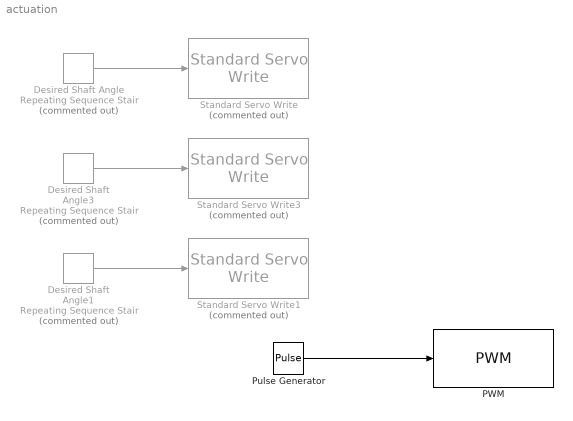
/*
 * Academic License - for use in teaching, academic research, and meeting
 * course requirements at degree granting institutions only.  Not for
 * government, commercial, or other organizational use.
 *
 * File: actuation.c
 *
 * Code generated for Simulink model 'actuation'.
 *
 * Model version                  : 1.5
 * Simulink Coder version         : 9.7 (R2022a) 13-Nov-2021
 * C/C++ source code generated on : Fri Apr  7 23:07:34 2023
 *
 * Target selection: ert.tlc
 * Embedded hardware selection: Atmel->AVR
 * Code generation objectives: Unspecified
 * Validation result: Not run
 */

#include "actuation.h"
#include "rtwtypes.h"
#include "actuation_types.h"

/* Block states (default storage) */
DW_actuation_T actuation_DW;

/* Real-time model */
static RT_MODEL_actuation_T actuation_M_;
RT_MODEL_actuation_T *const actuation_M = &actuation_M_;

/* Model step function */
void actuation_step(void)
{
  codertarget_arduinobase_inter_T *obj;
  real_T rtb_PulseGenerator;

  /* DiscretePulseGenerator: '<Root>/Pulse Generator' */
  rtb_PulseGenerator = (actuation_DW.clockTickCounter <
                        actuation_P.PulseGenerator_Duty) &&
    (actuation_DW.clockTickCounter >= 0L) ? actuation_P.PulseGenerator_Amp : 0.0;
  if (actuation_DW.clockTickCounter >= actuation_P.PulseGenerator_Period - 1.0)
  {
    actuation_DW.clockTickCounter = 0L;
  } else {
    actuation_DW.clockTickCounter++;
  }

  /* End of DiscretePulseGenerator: '<Root>/Pulse Generator' */

  /* MATLABSystem: '<Root>/PWM' */
  obj = &actuation_DW.obj;
  obj->PWMDriverObj.MW_PWM_HANDLE = MW_PWM_GetHandle(7UL);
  if (!(rtb_PulseGenerator <= 255.0)) {
    rtb_PulseGenerator = 255.0;
  }

  if (!(rtb_PulseGenerator >= 0.0)) {
    rtb_PulseGenerator = 0.0;
  }

  MW_PWM_SetDutyCycle(actuation_DW.obj.PWMDriverObj.MW_PWM_HANDLE,
                      rtb_PulseGenerator);

  /* End of MATLABSystem: '<Root>/PWM' */
}
